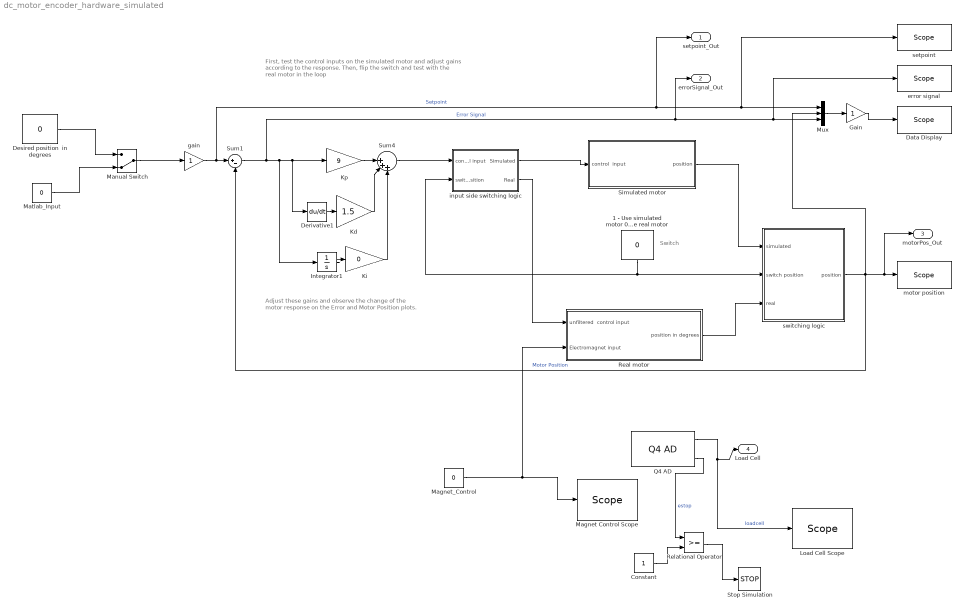
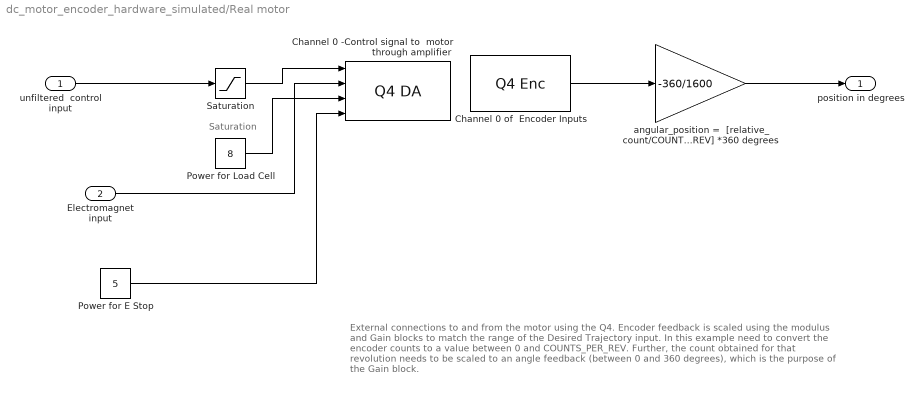
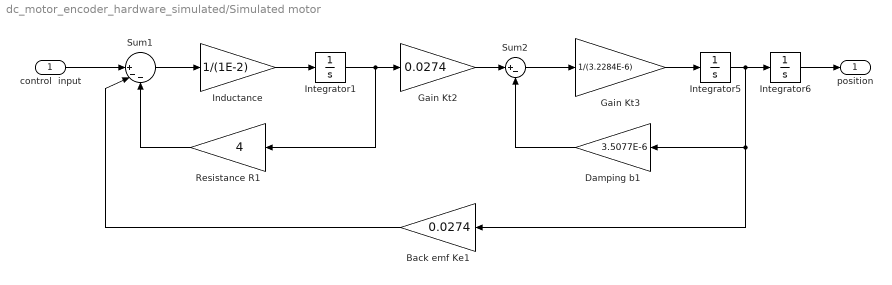
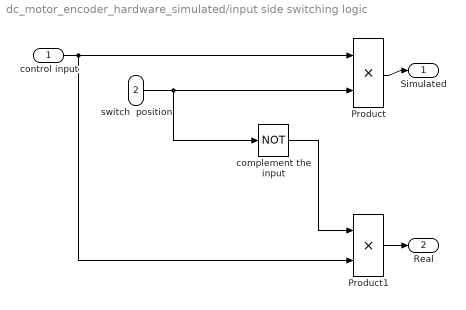
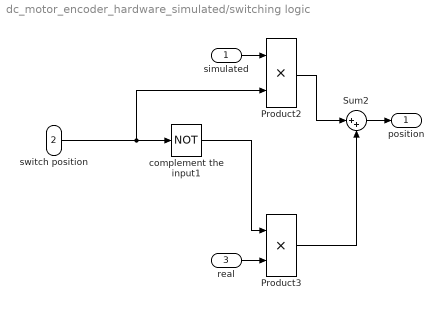
/*
 * dc_motor_encoder_hardware_simulated.c
 *
 * Academic Student License -- for use by students to meet course
 * requirements and perform academic research at degree granting
 * institutions only.  Not for government, commercial, or other
 * organizational use.
 *
 * Code generation for model "dc_motor_encoder_hardware_simulated".
 *
 * Model version              : 1.129
 * Simulink Coder version : 8.12 (R2017a) 16-Feb-2017
 * C source code generated on : Wed Apr 18 13:24:27 2018
 *
 * Target selection: slrt.tlc
 * Note: GRT includes extra infrastructure and instrumentation for prototyping
 * Embedded hardware selection: Generic->32-bit x86 compatible
 * Code generation objectives: Unspecified
 * Validation result: Not run
 */

#include "rt_logging_mmi.h"
#include "dc_motor_encoder_hardware_simulated_capi.h"
#include "dc_motor_encoder_hardware_simulated.h"
#include "dc_motor_encoder_hardware_simulated_private.h"

/* Block signals (auto storage) */
B_dc_motor_encoder_hardware_simulated_T dc_motor_encoder_hardware_simulated_B;

/* Continuous states */
X_dc_motor_encoder_hardware_simulated_T dc_motor_encoder_hardware_simulated_X;

/* Block states (auto storage) */
DW_dc_motor_encoder_hardware_simulated_T dc_motor_encoder_hardware_simulated_DW;

/* External outputs (root outports fed by signals with auto storage) */
ExtY_dc_motor_encoder_hardware_simulated_T dc_motor_encoder_hardware_simulated_Y;

/* Real-time model */
RT_MODEL_dc_motor_encoder_hardware_simulated_T
  dc_motor_encoder_hardware_simulated_M_;
RT_MODEL_dc_motor_encoder_hardware_simulated_T *const
  dc_motor_encoder_hardware_simulated_M =
  &dc_motor_encoder_hardware_simulated_M_;

/*
 * This function updates continuous states using the ODE3 fixed-step
 * solver algorithm
 */
static void rt_ertODEUpdateContinuousStates(RTWSolverInfo *si )
{
  /* Solver Matrices */
  static const real_T rt_ODE3_A[3] = {
    1.0/2.0, 3.0/4.0, 1.0
  };

  static const real_T rt_ODE3_B[3][3] = {
    { 1.0/2.0, 0.0, 0.0 },

    { 0.0, 3.0/4.0, 0.0 },

    { 2.0/9.0, 1.0/3.0, 4.0/9.0 }
  };

  time_T t = rtsiGetT(si);
  time_T tnew = rtsiGetSolverStopTime(si);
  time_T h = rtsiGetStepSize(si);
  real_T *x = rtsiGetContStates(si);
  ODE3_IntgData *id = (ODE3_IntgData *)rtsiGetSolverData(si);
  real_T *y = id->y;
  real_T *f0 = id->f[0];
  real_T *f1 = id->f[1];
  real_T *f2 = id->f[2];
  real_T hB[3];
  int_T i;
  int_T nXc = 4;
  rtsiSetSimTimeStep(si,MINOR_TIME_STEP);

  /* Save the state values at time t in y, we'll use x as ynew. */
  (void) memcpy(y, x,
                (uint_T)nXc*sizeof(real_T));

  /* Assumes that rtsiSetT and ModelOutputs are up-to-date */
  /* f0 = f(t,y) */
  rtsiSetdX(si, f0);
  dc_motor_encoder_hardware_simulated_derivatives();

  /* f(:,2) = feval(odefile, t + hA(1), y + f*hB(:,1), args(:)(*)); */
  hB[0] = h * rt_ODE3_B[0][0];
  for (i = 0; i < nXc; i++) {
    x[i] = y[i] + (f0[i]*hB[0]);
  }

  rtsiSetT(si, t + h*rt_ODE3_A[0]);
  rtsiSetdX(si, f1);
  dc_motor_encoder_hardware_simulated_output();
  dc_motor_encoder_hardware_simulated_derivatives();

  /* f(:,3) = feval(odefile, t + hA(2), y + f*hB(:,2), args(:)(*)); */
  for (i = 0; i <= 1; i++) {
    hB[i] = h * rt_ODE3_B[1][i];
  }

  for (i = 0; i < nXc; i++) {
    x[i] = y[i] + (f0[i]*hB[0] + f1[i]*hB[1]);
  }

  rtsiSetT(si, t + h*rt_ODE3_A[1]);
  rtsiSetdX(si, f2);
  dc_motor_encoder_hardware_simulated_output();
  dc_motor_encoder_hardware_simulated_derivatives();

  /* tnew = t + hA(3);
     ynew = y + f*hB(:,3); */
  for (i = 0; i <= 2; i++) {
    hB[i] = h * rt_ODE3_B[2][i];
  }

  for (i = 0; i < nXc; i++) {
    x[i] = y[i] + (f0[i]*hB[0] + f1[i]*hB[1] + f2[i]*hB[2]);
  }

  rtsiSetT(si, tnew);
  rtsiSetSimTimeStep(si,MAJOR_TIME_STEP);
}

/* Model output function */
void dc_motor_encoder_hardware_simulated_output(void)
{
  real_T *lastU;
  real_T lastTime;
  real_T u1;
  real_T u2;
  if (rtmIsMajorTimeStep(dc_motor_encoder_hardware_simulated_M)) {
    /* set solver stop time */
    if (!(dc_motor_encoder_hardware_simulated_M->Timing.clockTick0+1)) {
      rtsiSetSolverStopTime(&dc_motor_encoder_hardware_simulated_M->solverInfo,
                            ((dc_motor_encoder_hardware_simulated_M->Timing.clockTickH0
        + 1) * dc_motor_encoder_hardware_simulated_M->Timing.stepSize0 *
        4294967296.0));
    } else {
      rtsiSetSolverStopTime(&dc_motor_encoder_hardware_simulated_M->solverInfo,
                            ((dc_motor_encoder_hardware_simulated_M->Timing.clockTick0
        + 1) * dc_motor_encoder_hardware_simulated_M->Timing.stepSize0 +
        dc_motor_encoder_hardware_simulated_M->Timing.clockTickH0 *
        dc_motor_encoder_hardware_simulated_M->Timing.stepSize0 * 4294967296.0));
    }
  }                                    /* end MajorTimeStep */

  /* Update absolute time of base rate at minor time step */
  if (rtmIsMinorTimeStep(dc_motor_encoder_hardware_simulated_M)) {
    dc_motor_encoder_hardware_simulated_M->Timing.t[0] = rtsiGetT
      (&dc_motor_encoder_hardware_simulated_M->solverInfo);
  }

  /* Integrator: '<S5>/Integrator6' */
  dc_motor_encoder_hardware_simulated_B.Integrator6 =
    dc_motor_encoder_hardware_simulated_X.Integrator6_CSTATE;

  /* Product: '<S10>/Product2' incorporates:
   *  Constant: '<Root>/1 - Use simulated motor 0 - Use real motor'
   */
  dc_motor_encoder_hardware_simulated_B.Product2 =
    dc_motor_encoder_hardware_simulated_B.Integrator6 *
    dc_motor_encoder_hardware_simulated_P.uUsesimulatedmotor0Userealmotor;
  if (rtmIsMajorTimeStep(dc_motor_encoder_hardware_simulated_M)) {
    /* ManualSwitch: '<Root>/Manual Switch' incorporates:
     *  Constant: '<Root>/Desired position  in degrees'
     *  Constant: '<Root>/Matlab_Input'
     */
    if (dc_motor_encoder_hardware_simulated_P.ManualSwitch_CurrentSetting == 1)
    {
      dc_motor_encoder_hardware_simulated_B.ManualSwitch =
        dc_motor_encoder_hardware_simulated_P.Desiredpositionindegrees_Value;
    } else {
      dc_motor_encoder_hardware_simulated_B.ManualSwitch =
        dc_motor_encoder_hardware_simulated_P.Matlab_Input_Value;
    }

    /* End of ManualSwitch: '<Root>/Manual Switch' */

    /* Gain: '<Root>/gain' */
    dc_motor_encoder_hardware_simulated_B.Setpoint =
      dc_motor_encoder_hardware_simulated_P.gain_Gain *
      dc_motor_encoder_hardware_simulated_B.ManualSwitch;

    /* Outport: '<Root>/setpoint_Out' */
    dc_motor_encoder_hardware_simulated_Y.setpoint_Out =
      dc_motor_encoder_hardware_simulated_B.Setpoint;

    /* Logic: '<S10>/complement the input1' incorporates:
     *  Constant: '<Root>/1 - Use simulated motor 0 - Use real motor'
     */
    dc_motor_encoder_hardware_simulated_B.complementtheinput1 =
      !(dc_motor_encoder_hardware_simulated_P.uUsesimulatedmotor0Userealmotor !=
        0.0);

    /* S-Function (encquanserq8): '<S4>/Channel 0 of  Encoder Inputs ' */

    /* Level2 S-Function Block: '<S4>/Channel 0 of  Encoder Inputs ' (encquanserq8) */
    {
      SimStruct *rts = dc_motor_encoder_hardware_simulated_M->childSfunctions[0];
      sfcnOutputs(rts,1);
    }

    /* Gain: '<S4>/angular_position =  [relative_count//COUNTS_PER_REV] *360 degrees' */
    dc_motor_encoder_hardware_simulated_B.angular_positionrelative_countC =
      dc_motor_encoder_hardware_simulated_P.angular_positionrelative_countC *
      dc_motor_encoder_hardware_simulated_B.Channel0ofEncoderInputs;

    /* Product: '<S10>/Product3' */
    dc_motor_encoder_hardware_simulated_B.Product3 = (real_T)
      dc_motor_encoder_hardware_simulated_B.complementtheinput1 *
      dc_motor_encoder_hardware_simulated_B.angular_positionrelative_countC;
  }

  /* Sum: '<S10>/Sum2' */
  dc_motor_encoder_hardware_simulated_B.Sum2 =
    dc_motor_encoder_hardware_simulated_B.Product2 +
    dc_motor_encoder_hardware_simulated_B.Product3;

  /* Sum: '<Root>/Sum1' */
  dc_motor_encoder_hardware_simulated_B.ErrorSignal =
    dc_motor_encoder_hardware_simulated_B.Setpoint
    - dc_motor_encoder_hardware_simulated_B.Sum2;

  /* Outport: '<Root>/errorSignal_Out' */
  dc_motor_encoder_hardware_simulated_Y.errorSignal_Out =
    dc_motor_encoder_hardware_simulated_B.ErrorSignal;

  /* Outport: '<Root>/motorPos_Out' */
  dc_motor_encoder_hardware_simulated_Y.motorPos_Out =
    dc_motor_encoder_hardware_simulated_B.Sum2;

  /* S-Function (scblock): '<S1>/S-Function' */
  /* ok to acquire for <S1>/S-Function */
  dc_motor_encoder_hardware_simulated_DW.SFunction_IWORK.AcquireOK = 1;
  if (rtmIsMajorTimeStep(dc_motor_encoder_hardware_simulated_M)) {
    /* S-Function (scblock): '<S3>/S-Function' */
    /* ok to acquire for <S3>/S-Function */
    dc_motor_encoder_hardware_simulated_DW.SFunction_IWORK_p.AcquireOK = 1;
  }

  /* S-Function (scblock): '<S6>/S-Function' */
  /* ok to acquire for <S6>/S-Function */
  dc_motor_encoder_hardware_simulated_DW.SFunction_IWORK_i.AcquireOK = 1;

  /* S-Function (scblock): '<S8>/S-Function' */
  /* ok to acquire for <S8>/S-Function */
  dc_motor_encoder_hardware_simulated_DW.SFunction_IWORK_it.AcquireOK = 1;
  if (rtmIsMajorTimeStep(dc_motor_encoder_hardware_simulated_M)) {
    /* S-Function (scblock): '<S9>/S-Function' */
    /* ok to acquire for <S9>/S-Function */
    dc_motor_encoder_hardware_simulated_DW.SFunction_IWORK_n.AcquireOK = 1;
  }

  /* Derivative: '<Root>/Derivative1' */
  if ((dc_motor_encoder_hardware_simulated_DW.TimeStampA >=
       dc_motor_encoder_hardware_simulated_M->Timing.t[0]) &&
      (dc_motor_encoder_hardware_simulated_DW.TimeStampB >=
       dc_motor_encoder_hardware_simulated_M->Timing.t[0])) {
    dc_motor_encoder_hardware_simulated_B.Derivative1 = 0.0;
  } else {
    lastTime = dc_motor_encoder_hardware_simulated_DW.TimeStampA;
    lastU = &dc_motor_encoder_hardware_simulated_DW.LastUAtTimeA;
    if (dc_motor_encoder_hardware_simulated_DW.TimeStampA <
        dc_motor_encoder_hardware_simulated_DW.TimeStampB) {
      if (dc_motor_encoder_hardware_simulated_DW.TimeStampB <
          dc_motor_encoder_hardware_simulated_M->Timing.t[0]) {
        lastTime = dc_motor_encoder_hardware_simulated_DW.TimeStampB;
        lastU = &dc_motor_encoder_hardware_simulated_DW.LastUAtTimeB;
      }
    } else {
      if (dc_motor_encoder_hardware_simulated_DW.TimeStampA >=
          dc_motor_encoder_hardware_simulated_M->Timing.t[0]) {
        lastTime = dc_motor_encoder_hardware_simulated_DW.TimeStampB;
        lastU = &dc_motor_encoder_hardware_simulated_DW.LastUAtTimeB;
      }
    }

    lastTime = dc_motor_encoder_hardware_simulated_M->Timing.t[0] - lastTime;
    dc_motor_encoder_hardware_simulated_B.Derivative1 =
      (dc_motor_encoder_hardware_simulated_B.ErrorSignal - *lastU) / lastTime;
  }

  /* End of Derivative: '<Root>/Derivative1' */

  /* Gain: '<Root>/Gain' */
  dc_motor_encoder_hardware_simulated_B.Gain[0] =
    dc_motor_encoder_hardware_simulated_P.Gain_Gain *
    dc_motor_encoder_hardware_simulated_B.Setpoint;
  dc_motor_encoder_hardware_simulated_B.Gain[1] =
    dc_motor_encoder_hardware_simulated_P.Gain_Gain *
    dc_motor_encoder_hardware_simulated_B.Sum2;
  dc_motor_encoder_hardware_simulated_B.Gain[2] =
    dc_motor_encoder_hardware_simulated_P.Gain_Gain *
    dc_motor_encoder_hardware_simulated_B.ErrorSignal;

  /* Integrator: '<Root>/Integrator1' */
  dc_motor_encoder_hardware_simulated_B.Integrator1 =
    dc_motor_encoder_hardware_simulated_X.Integrator1_CSTATE;

  /* Gain: '<Root>/Kd' */
  dc_motor_encoder_hardware_simulated_B.Kd =
    dc_motor_encoder_hardware_simulated_P.Kd_Gain *
    dc_motor_encoder_hardware_simulated_B.Derivative1;

  /* Gain: '<Root>/Ki' */
  dc_motor_encoder_hardware_simulated_B.Ki =
    dc_motor_encoder_hardware_simulated_P.Ki_Gain *
    dc_motor_encoder_hardware_simulated_B.Integrator1;

  /* Gain: '<Root>/Kp' */
  dc_motor_encoder_hardware_simulated_B.Kp =
    dc_motor_encoder_hardware_simulated_P.Kp_Gain *
    dc_motor_encoder_hardware_simulated_B.ErrorSignal;
  if (rtmIsMajorTimeStep(dc_motor_encoder_hardware_simulated_M)) {
    /* Constant: '<Root>/Magnet_Control' */
    dc_motor_encoder_hardware_simulated_B.Magnet_Control =
      dc_motor_encoder_hardware_simulated_P.Magnet_Control_Value;

    /* Logic: '<S7>/complement the input' incorporates:
     *  Constant: '<Root>/1 - Use simulated motor 0 - Use real motor'
     */
    dc_motor_encoder_hardware_simulated_B.complementtheinput =
      !(dc_motor_encoder_hardware_simulated_P.uUsesimulatedmotor0Userealmotor !=
        0.0);
  }

  /* Sum: '<Root>/Sum4' */
  dc_motor_encoder_hardware_simulated_B.Sum4 =
    (dc_motor_encoder_hardware_simulated_B.Kp +
     dc_motor_encoder_hardware_simulated_B.Kd) +
    dc_motor_encoder_hardware_simulated_B.Ki;

  /* Product: '<S7>/Product1' */
  dc_motor_encoder_hardware_simulated_B.Product1 = (real_T)
    dc_motor_encoder_hardware_simulated_B.complementtheinput *
    dc_motor_encoder_hardware_simulated_B.Sum4;

  /* Saturate: '<S4>/Saturation' */
  lastTime = dc_motor_encoder_hardware_simulated_B.Product1;
  u1 = dc_motor_encoder_hardware_simulated_P.Saturation_LowerSat;
  u2 = dc_motor_encoder_hardware_simulated_P.Saturation_UpperSat;
  if (lastTime > u2) {
    dc_motor_encoder_hardware_simulated_B.Saturation = u2;
  } else if (lastTime < u1) {
    dc_motor_encoder_hardware_simulated_B.Saturation = u1;
  } else {
    dc_motor_encoder_hardware_simulated_B.Saturation = lastTime;
  }

  /* End of Saturate: '<S4>/Saturation' */
  if (rtmIsMajorTimeStep(dc_motor_encoder_hardware_simulated_M)) {
    /* Constant: '<S4>/Power for Load Cell' */
    dc_motor_encoder_hardware_simulated_B.PowerforLoadCell =
      dc_motor_encoder_hardware_simulated_P.PowerforLoadCell_Value;

    /* Constant: '<S4>/Power for E Stop' */
    dc_motor_encoder_hardware_simulated_B.PowerforEStop =
      dc_motor_encoder_hardware_simulated_P.PowerforEStop_Value;

    /* S-Function (daquanserq8): '<S4>/Channel 0 -Control signal to  motor through amplifier ' */

    /* Level2 S-Function Block: '<S4>/Channel 0 -Control signal to  motor through amplifier ' (daquanserq8) */
    {
      SimStruct *rts = dc_motor_encoder_hardware_simulated_M->childSfunctions[1];
      sfcnOutputs(rts,1);
    }
  }

  /* Integrator: '<S5>/Integrator5' */
  dc_motor_encoder_hardware_simulated_B.Integrator5 =
    dc_motor_encoder_hardware_simulated_X.Integrator5_CSTATE;

  /* Gain: '<S5>/Back emf Ke1' */
  dc_motor_encoder_hardware_simulated_B.BackemfKe1 =
    dc_motor_encoder_hardware_simulated_P.BackemfKe1_Gain *
    dc_motor_encoder_hardware_simulated_B.Integrator5;

  /* Gain: '<S5>/Damping b1' */
  dc_motor_encoder_hardware_simulated_B.Dampingb1 =
    dc_motor_encoder_hardware_simulated_P.Dampingb1_Gain *
    dc_motor_encoder_hardware_simulated_B.Integrator5;

  /* Integrator: '<S5>/Integrator1' */
  dc_motor_encoder_hardware_simulated_B.Integrator1_h =
    dc_motor_encoder_hardware_simulated_X.Integrator1_CSTATE_i;

  /* Gain: '<S5>/Gain Kt2' */
  dc_motor_encoder_hardware_simulated_B.GainKt2 =
    dc_motor_encoder_hardware_simulated_P.GainKt2_Gain *
    dc_motor_encoder_hardware_simulated_B.Integrator1_h;

  /* Sum: '<S5>/Sum2' */
  dc_motor_encoder_hardware_simulated_B.Sum2_e =
    dc_motor_encoder_hardware_simulated_B.GainKt2 -
    dc_motor_encoder_hardware_simulated_B.Dampingb1;

  /* Gain: '<S5>/Gain Kt3' */
  dc_motor_encoder_hardware_simulated_B.GainKt3 =
    dc_motor_encoder_hardware_simulated_P.GainKt3_Gain *
    dc_motor_encoder_hardware_simulated_B.Sum2_e;

  /* Product: '<S7>/Product' incorporates:
   *  Constant: '<Root>/1 - Use simulated motor 0 - Use real motor'
   */
  dc_motor_encoder_hardware_simulated_B.Product =
    dc_motor_encoder_hardware_simulated_B.Sum4 *
    dc_motor_encoder_hardware_simulated_P.uUsesimulatedmotor0Userealmotor;

  /* Gain: '<S5>/Resistance R1' */
  dc_motor_encoder_hardware_simulated_B.ResistanceR1 =
    dc_motor_encoder_hardware_simulated_P.ResistanceR1_Gain *
    dc_motor_encoder_hardware_simulated_B.Integrator1_h;

  /* Sum: '<S5>/Sum1' */
  dc_motor_encoder_hardware_simulated_B.Sum1 =
    (dc_motor_encoder_hardware_simulated_B.Product -
     dc_motor_encoder_hardware_simulated_B.BackemfKe1) -
    dc_motor_encoder_hardware_simulated_B.ResistanceR1;

  /* Gain: '<S5>/Inductance' */
  dc_motor_encoder_hardware_simulated_B.Inductance =
    dc_motor_encoder_hardware_simulated_P.Inductance_Gain *
    dc_motor_encoder_hardware_simulated_B.Sum1;
  if (rtmIsMajorTimeStep(dc_motor_encoder_hardware_simulated_M)) {
    /* S-Function (adquanserq8): '<Root>/Q4 AD' */

    /* Level2 S-Function Block: '<Root>/Q4 AD' (adquanserq8) */
    {
      SimStruct *rts = dc_motor_encoder_hardware_simulated_M->childSfunctions[2];
      sfcnOutputs(rts,1);
    }

    /* Outport: '<Root>/Load Cell' */
    dc_motor_encoder_hardware_simulated_Y.LoadCell =
      dc_motor_encoder_hardware_simulated_B.loadcell;

    /* S-Function (scblock): '<S2>/S-Function' */
    /* ok to acquire for <S2>/S-Function */
    dc_motor_encoder_hardware_simulated_DW.SFunction_IWORK_g.AcquireOK = 1;

    /* RelationalOperator: '<Root>/Relational Operator' incorporates:
     *  Constant: '<Root>/Constant'
     */
    dc_motor_encoder_hardware_simulated_B.RelationalOperator =
      (dc_motor_encoder_hardware_simulated_B.estop >=
       dc_motor_encoder_hardware_simulated_P.Constant_Value);

    /* Stop: '<Root>/Stop Simulation' */
    if (dc_motor_encoder_hardware_simulated_B.RelationalOperator) {
      rtmSetStopRequested(dc_motor_encoder_hardware_simulated_M, 1);
    }

    /* End of Stop: '<Root>/Stop Simulation' */
  }
}

/* Model update function */
void dc_motor_encoder_hardware_simulated_update(void)
{
  real_T *lastU;

  /* Update for Derivative: '<Root>/Derivative1' */
  if (dc_motor_encoder_hardware_simulated_DW.TimeStampA == (rtInf)) {
    dc_motor_encoder_hardware_simulated_DW.TimeStampA =
      dc_motor_encoder_hardware_simulated_M->Timing.t[0];
    lastU = &dc_motor_encoder_hardware_simulated_DW.LastUAtTimeA;
  } else if (dc_motor_encoder_hardware_simulated_DW.TimeStampB == (rtInf)) {
    dc_motor_encoder_hardware_simulated_DW.TimeStampB =
      dc_motor_encoder_hardware_simulated_M->Timing.t[0];
    lastU = &dc_motor_encoder_hardware_simulated_DW.LastUAtTimeB;
  } else if (dc_motor_encoder_hardware_simulated_DW.TimeStampA <
             dc_motor_encoder_hardware_simulated_DW.TimeStampB) {
    dc_motor_encoder_hardware_simulated_DW.TimeStampA =
      dc_motor_encoder_hardware_simulated_M->Timing.t[0];
    lastU = &dc_motor_encoder_hardware_simulated_DW.LastUAtTimeA;
  } else {
    dc_motor_encoder_hardware_simulated_DW.TimeStampB =
      dc_motor_encoder_hardware_simulated_M->Timing.t[0];
    lastU = &dc_motor_encoder_hardware_simulated_DW.LastUAtTimeB;
  }

  *lastU = dc_motor_encoder_hardware_simulated_B.ErrorSignal;

  /* End of Update for Derivative: '<Root>/Derivative1' */
  if (rtmIsMajorTimeStep(dc_motor_encoder_hardware_simulated_M)) {
    rt_ertODEUpdateContinuousStates
      (&dc_motor_encoder_hardware_simulated_M->solverInfo);
  }

  /* Update absolute time for base rate */
  /* The "clockTick0" counts the number of times the code of this task has
   * been executed. The absolute time is the multiplication of "clockTick0"
   * and "Timing.stepSize0". Size of "clockTick0" ensures timer will not
   * overflow during the application lifespan selected.
   * Timer of this task consists of two 32 bit unsigned integers.
   * The two integers represent the low bits Timing.clockTick0 and the high bits
   * Timing.clockTickH0. When the low bit overflows to 0, the high bits increment.
   */
  if (!(++dc_motor_encoder_hardware_simulated_M->Timing.clockTick0)) {
    ++dc_motor_encoder_hardware_simulated_M->Timing.clockTickH0;
  }

  dc_motor_encoder_hardware_simulated_M->Timing.t[0] = rtsiGetSolverStopTime
    (&dc_motor_encoder_hardware_simulated_M->solverInfo);

  {
    /* Update absolute timer for sample time: [0.001s, 0.0s] */
    /* The "clockTick1" counts the number of times the code of this task has
     * been executed. The absolute time is the multiplication of "clockTick1"
     * and "Timing.stepSize1". Size of "clockTick1" ensures timer will not
     * overflow during the application lifespan selected.
     * Timer of this task consists of two 32 bit unsigned integers.
     * The two integers represent the low bits Timing.clockTick1 and the high bits
     * Timing.clockTickH1. When the low bit overflows to 0, the high bits increment.
     */
    if (!(++dc_motor_encoder_hardware_simulated_M->Timing.clockTick1)) {
      ++dc_motor_encoder_hardware_simulated_M->Timing.clockTickH1;
    }

    dc_motor_encoder_hardware_simulated_M->Timing.t[1] =
      dc_motor_encoder_hardware_simulated_M->Timing.clockTick1 *
      dc_motor_encoder_hardware_simulated_M->Timing.stepSize1 +
      dc_motor_encoder_hardware_simulated_M->Timing.clockTickH1 *
      dc_motor_encoder_hardware_simulated_M->Timing.stepSize1 * 4294967296.0;
  }
}
